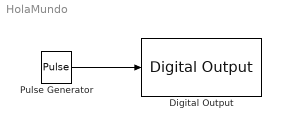
/*
 * File: HolaMundo.c
 *
 * Code generated for Simulink model 'HolaMundo'.
 *
 * Model version                  : 1.1
 * Simulink Coder version         : 25.1 (R2025a) 21-Nov-2024
 * C/C++ source code generated on : Fri Jul 11 12:43:34 2025
 *
 * Target selection: ert.tlc
 * Embedded hardware selection: Atmel->AVR
 * Code generation objectives: Unspecified
 * Validation result: Not run
 */

#include "HolaMundo.h"
#include "HolaMundo_private.h"
#include "rtwtypes.h"
#include <math.h>

/* Block states (default storage) */
DW_HolaMundo_T HolaMundo_DW;

/* Real-time model */
static RT_MODEL_HolaMundo_T HolaMundo_M_;
RT_MODEL_HolaMundo_T *const HolaMundo_M = &HolaMundo_M_;
real_T rt_roundd_snf(real_T u)
{
  real_T y;
  if (fabs(u) < 4.503599627370496E+15) {
    if (u >= 0.5) {
      y = floor(u + 0.5);
    } else if (u > -0.5) {
      y = u * 0.0;
    } else {
      y = ceil(u - 0.5);
    }
  } else {
    y = u;
  }

  return y;
}

/* Model step function */
void HolaMundo_step(void)
{
  real_T rtb_PulseGenerator;
  uint8_T tmp;

  /* DiscretePulseGenerator: '<Root>/Pulse Generator' */
  rtb_PulseGenerator = (HolaMundo_DW.clockTickCounter <
                        HolaMundo_P.PulseGenerator_Duty) &&
    (HolaMundo_DW.clockTickCounter >= 0L) ? HolaMundo_P.PulseGenerator_Amp : 0.0;
  if (HolaMundo_DW.clockTickCounter >= HolaMundo_P.PulseGenerator_Period - 1.0)
  {
    HolaMundo_DW.clockTickCounter = 0L;
  } else {
    HolaMundo_DW.clockTickCounter++;
  }

  /* End of DiscretePulseGenerator: '<Root>/Pulse Generator' */

  /* MATLABSystem: '<Root>/Digital Output' */
  rtb_PulseGenerator = rt_roundd_snf(rtb_PulseGenerator);
  if (rtb_PulseGenerator < 256.0) {
    if (rtb_PulseGenerator >= 0.0) {
      tmp = (uint8_T)rtb_PulseGenerator;
    } else {
      tmp = 0U;
    }
  } else {
    tmp = MAX_uint8_T;
  }

  writeDigitalPin(13, tmp);

  /* End of MATLABSystem: '<Root>/Digital Output' */

  /* Update absolute time for base rate */
  /* The "clockTick0" counts the number of times the code of this task has
   * been executed. The resolution of this integer timer is 0.5, which is the step size
   * of the task. Size of "clockTick0" ensures timer will not overflow during the
   * application lifespan selected.
   */
  HolaMundo_M->Timing.clockTick0++;
}
